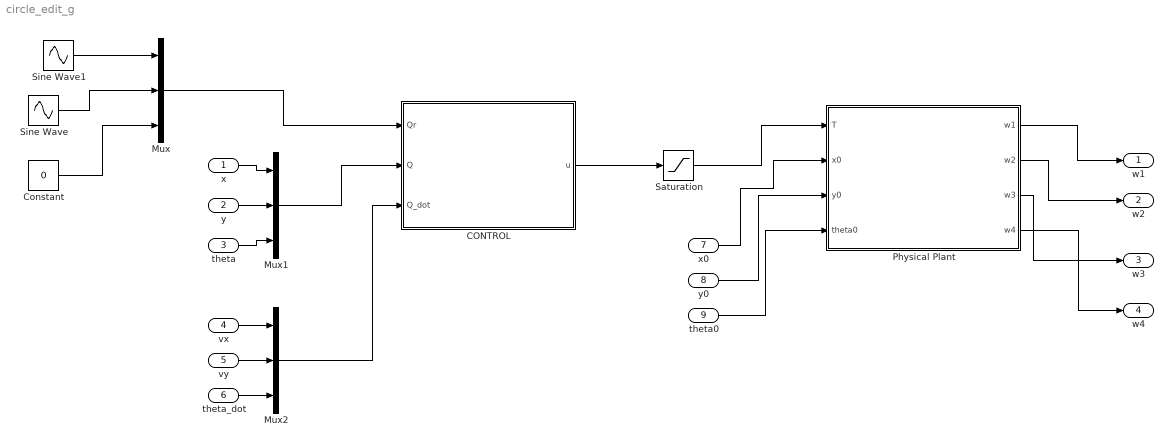
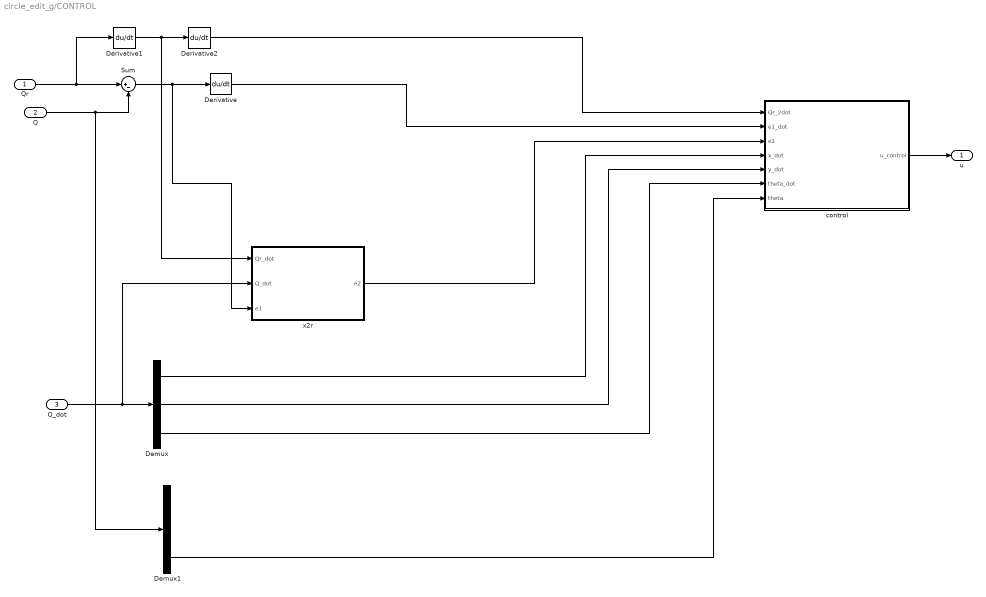
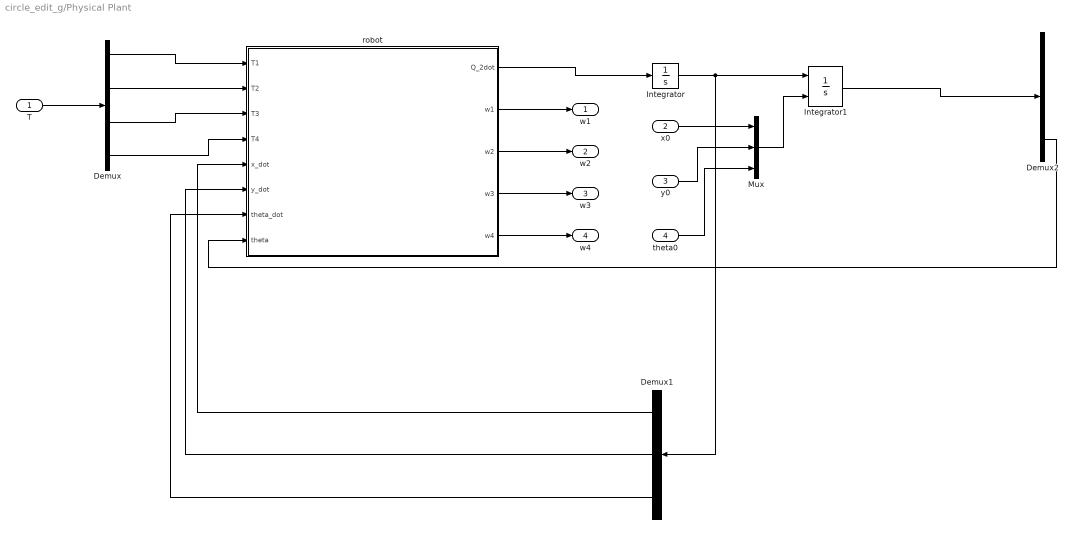
== matlab function circle_edit_g/Physical Plant/robot ==
function [Q_2dot,w1,w2,w3,w4]  = fcn(T1, T2, T3, T4,x_dot,y_dot,theta_dot,theta)

m=5;
I=5;
Ib=0.1;
l1= 0.3;
l2=0.3;
r=0.048;
g=9.8;
u=0.01;
N = m*g/4;
M=[(m+4*Ib/(r*r)) 0 0; 0 (m+4*Ib/(r*r)) 0; 0 0 (I+4*Ib*(l1+l2)*(l1+l2)/(r*r))];
C= [(m+4*Ib/(r*r))*y_dot*theta_dot;-(m+4*Ib/(r*r))*x_dot*theta_dot;0 ];
B=(1/r)*[(cos(theta)+sin(theta)) (cos(theta)-sin(theta)) (cos(theta)+sin(theta)) (cos(theta)-sin(theta));
         (-cos(theta)+sin(theta)) (cos(theta)+sin(theta)) (-cos(theta)+sin(theta)) (cos(theta)+sin(theta)); 
         (-(l1+l2)) (l1+l2) (l1+l2) (-(l1+l2)) ];
T=[T1;T2;T3;T4];
xm= cos(theta)*x_dot+sin(theta)*y_dot;
ym= -sin(theta)*x_dot+cos(theta)*y_dot;
w1 = (1/r)*(xm-ym-(l1+l2)*theta_dot);
w2 = (1/r)*(xm+ym+(l1+l2)*theta_dot);
w3 = (1/r)*(xm-ym+(l1+l2)*theta_dot);
w4 = (1/r)*(xm+ym-(l1+l2)*theta_dot);
w_max = 2.304;
if w1 > w_max
    w1 = w_max; %w = 20.83
elseif w1 < -w_max
    w1 = -w_max;
end
if w2 > w_max
    w2 = w_max;
elseif w2 < -w_max
    w2 = -w_max;
end
if w3 > w_max
    w3 = w_max;
elseif w3 < -w_max
    w3 = -w_max;
end
if w4 > w_max
    w4 = w_max;
elseif w4 < -w_max
    w4 = -w_max;
end
Xi=[u*r*N*sign(w1);u*r*N*sign(w2);u*r*N*sign(w3);u*N*r*sign(w4)];

Q_2dot=inv(M)*(B*T-C-B*Xi);

== matlab function circle_edit_g/CONTROL/control ==
function u_control = fcn(Qr_2dot,e1_dot,e2,x_dot,y_dot,theta_dot,theta)

m=5;
I=5;
Ib=0.1;
l1= 0.3;
l2=0.3;
r=0.048;
g=9.8;
u=0.01;
N = m*g/4;
M=[(m+4*Ib/(r*r)) 0 0; 0 (m+4*Ib/(r*r)) 0; 0 0 (I+4*Ib*(l1+l2)*(l1+l2)/(r*r))];
C= [(m+4*Ib/(r*r))*y_dot*theta_dot;-(m+4*Ib/(r*r))*x_dot*theta_dot;0 ];
B=(1/r)*[(cos(theta)+sin(theta)) (cos(theta)-sin(theta)) (cos(theta)+sin(theta)) (cos(theta)-sin(theta));
    (-cos(theta)+sin(theta)) (cos(theta)+sin(theta)) (-cos(theta)+sin(theta)) (cos(theta)+sin(theta)); 
    (-(l1+l2)) (l1+l2) (l1+l2) (-(l1+l2)) ];

xm= cos(theta)*x_dot+sin(theta)*y_dot;
ym= -sin(theta)*x_dot+cos(theta)*y_dot;
w1 = (1/r)*(xm-ym-(l1+l2)*theta_dot);
w2 = (1/r)*(xm+ym+(l1+l2)*theta_dot);
w3 = (1/r)*(xm-ym+(l1+l2)*theta_dot);
w4 = (1/r)*(xm+ym-(l1+l2)*theta_dot);
w_max = 2.304;
if w1 > w_max
    w1 = w_max; %w = 20.83
elseif w1 < -w_max
    w1 = -w_max;
end
if w2 > w_max
    w2 = w_max;
elseif w2 < -w_max
    w2 = -w_max;
end
if w3 > w_max
    w3 = w_max;
elseif w3 < -w_max
    w3 = -w_max;
end
if w4 > w_max
    w4 = w_max;
elseif w4 < -w_max
    w4 = -w_max;
end
Xi=[u*r*N*sign(w1);u*r*N*sign(w2);u*r*N*sign(w3);u*N*r*sign(w4)];

k1 = [4 0 0;
      0 4 0;
      0 0 4];
k2 = [4 0 0;
      0 4 0;
      0 0 4];
  
u_control = B'*inv(B*B')*M*((Qr_2dot+k1*e1_dot)+inv(M)*C+inv(M)*B*Xi+k2*e2);

== matlab function circle_edit_g/CONTROL/x2r ==
function e2  = fcn(Qr_dot,Q_dot,e1)

k1 = [4 0 0;
      0 4 0;
      0 0 4];
 
%x2r_dot = (Qr_2dot+k1*e1_dot);
x2r = Qr_dot + k1*e1;
e2 = x2r - Q_dot;

/*
 * File: circle_edit_g.c
 *
 * Code generated for Simulink model 'circle_edit_g'.
 *
 * Model version                  : 7.69
 * Simulink Coder version         : 9.4 (R2020b) 29-Jul-2020
 * C/C++ source code generated on : Mon May 27 18:05:09 2024
 *
 * Target selection: ert.tlc
 * Embedded hardware selection: ARM Compatible->ARM Cortex-M
 * Code generation objectives:
 *    1. Execution efficiency
 *    2. RAM efficiency
 * Validation result: Not run
 */

#include "circle_edit_g.h"
#define NumBitsPerChar                 8U

/* Private macros used by the generated code to access rtModel */
#ifndef rtmSetFirstInitCond
#define rtmSetFirstInitCond(rtm, val)  ((rtm)->Timing.firstInitCondFlag = (val))
#endif

#ifndef rtmIsFirstInitCond
#define rtmIsFirstInitCond(rtm)        ((rtm)->Timing.firstInitCondFlag)
#endif

#ifndef rtmIsMajorTimeStep
#define rtmIsMajorTimeStep(rtm)        (((rtm)->Timing.simTimeStep) == MAJOR_TIME_STEP)
#endif

#ifndef rtmIsMinorTimeStep
#define rtmIsMinorTimeStep(rtm)        (((rtm)->Timing.simTimeStep) == MINOR_TIME_STEP)
#endif

#ifndef rtmSetTPtr
#define rtmSetTPtr(rtm, val)           ((rtm)->Timing.t = (val))
#endif

/* Continuous states */
X rtX;

/* Block signals and states (default storage) */
DW rtDW;

/* External inputs (root inport signals with default storage) */
ExtU rtU;

/* External outputs (root outports fed by signals with default storage) */
ExtY rtY;

/* Real-time model */
static RT_MODEL rtM_;
RT_MODEL *const rtM = &rtM_;

/* private model entry point functions */
extern void circle_edit_g_derivatives(void);
static real_T rtGetInf(void);
static real32_T rtGetInfF(void);
static real_T rtGetMinusInf(void);
static real32_T rtGetMinusInfF(void);
static real_T rtGetNaN(void);
static real32_T rtGetNaNF(void);
extern real_T rtInf;
extern real_T rtMinusInf;
extern real_T rtNaN;
extern real32_T rtInfF;
extern real32_T rtMinusInfF;
extern real32_T rtNaNF;
static void rt_InitInfAndNaN(size_t realSize);
static boolean_T rtIsInf(real_T value);
static boolean_T rtIsInfF(real32_T value);
static boolean_T rtIsNaN(real_T value);
static boolean_T rtIsNaNF(real32_T value);
typedef struct {
  struct {
    uint32_T wordH;
    uint32_T wordL;
  } words;
} BigEndianIEEEDouble;

typedef struct {
  struct {
    uint32_T wordL;
    uint32_T wordH;
  } words;
} LittleEndianIEEEDouble;

typedef struct {
  union {
    real32_T wordLreal;
    uint32_T wordLuint;
  } wordL;
} IEEESingle;

real_T rtInf;
real_T rtMinusInf;
real_T rtNaN;
real32_T rtInfF;
real32_T rtMinusInfF;
real32_T rtNaNF;

/*
 * Initialize rtInf needed by the generated code.
 * Inf is initialized as non-signaling. Assumes IEEE.
 */
static real_T rtGetInf(void)
{
  size_t bitsPerReal = sizeof(real_T) * (NumBitsPerChar);
  real_T inf = 0.0;
  if (bitsPerReal == 32U) {
    inf = rtGetInfF();
  } else {
    union {
      LittleEndianIEEEDouble bitVal;
      real_T fltVal;
    } tmpVal;

    tmpVal.bitVal.words.wordH = 0x7FF00000U;
    tmpVal.bitVal.words.wordL = 0x00000000U;
    inf = tmpVal.fltVal;
  }

  return inf;
}

/*
 * Initialize rtInfF needed by the generated code.
 * Inf is initialized as non-signaling. Assumes IEEE.
 */
static real32_T rtGetInfF(void)
{
  IEEESingle infF;
  infF.wordL.wordLuint = 0x7F800000U;
  return infF.wordL.wordLreal;
}

/*
 * Initialize rtMinusInf needed by the generated code.
 * Inf is initialized as non-signaling. Assumes IEEE.
 */
static real_T rtGetMinusInf(void)
{
  size_t bitsPerReal = sizeof(real_T) * (NumBitsPerChar);
  real_T minf = 0.0;
  if (bitsPerReal == 32U) {
    minf = rtGetMinusInfF();
  } else {
    union {
      LittleEndianIEEEDouble bitVal;
      real_T fltVal;
    } tmpVal;

    tmpVal.bitVal.words.wordH = 0xFFF00000U;
    tmpVal.bitVal.words.wordL = 0x00000000U;
    minf = tmpVal.fltVal;
  }

  return minf;
}

/*
 * Initialize rtMinusInfF needed by the generated code.
 * Inf is initialized as non-signaling. Assumes IEEE.
 */
static real32_T rtGetMinusInfF(void)
{
  IEEESingle minfF;
  minfF.wordL.wordLuint = 0xFF800000U;
  return minfF.wordL.wordLreal;
}

/*
 * Initialize rtNaN needed by the generated code.
 * NaN is initialized as non-signaling. Assumes IEEE.
 */
static real_T rtGetNaN(void)
{
  size_t bitsPerReal = sizeof(real_T) * (NumBitsPerChar);
  real_T nan = 0.0;
  if (bitsPerReal == 32U) {
    nan = rtGetNaNF();
  } else {
    union {
      LittleEndianIEEEDouble bitVal;
      real_T fltVal;
    } tmpVal;

    tmpVal.bitVal.words.wordH = 0xFFF80000U;
    tmpVal.bitVal.words.wordL = 0x00000000U;
    nan = tmpVal.fltVal;
  }

  return nan;
}

/*
 * Initialize rtNaNF needed by the generated code.
 * NaN is initialized as non-signaling. Assumes IEEE.
 */
static real32_T rtGetNaNF(void)
{
  IEEESingle nanF = { { 0 } };

  nanF.wordL.wordLuint = 0xFFC00000U;
  return nanF.wordL.wordLreal;
}

/*
 * Initialize the rtInf, rtMinusInf, and rtNaN needed by the
 * generated code. NaN is initialized as non-signaling. Assumes IEEE.
 */
static void rt_InitInfAndNaN(size_t realSize)
{
  (void) (realSize);
  rtNaN = rtGetNaN();
  rtNaNF = rtGetNaNF();
  rtInf = rtGetInf();
  rtInfF = rtGetInfF();
  rtMinusInf = rtGetMinusInf();
  rtMinusInfF = rtGetMinusInfF();
}

/* Test if value is infinite */
static boolean_T rtIsInf(real_T value)
{
  return (boolean_T)((value==rtInf || value==rtMinusInf) ? 1U : 0U);
}

/* Test if single-precision value is infinite */
static boolean_T rtIsInfF(real32_T value)
{
  return (boolean_T)(((value)==rtInfF || (value)==rtMinusInfF) ? 1U : 0U);
}

/* Test if value is not a number */
static boolean_T rtIsNaN(real_T value)
{
  boolean_T result = (boolean_T) 0;
  size_t bitsPerReal = sizeof(real_T) * (NumBitsPerChar);
  if (bitsPerReal == 32U) {
    result = rtIsNaNF((real32_T)value);
  } else {
    union {
      LittleEndianIEEEDouble bitVal;
      real_T fltVal;
    } tmpVal;

    tmpVal.fltVal = value;
    result = (boolean_T)((tmpVal.bitVal.words.wordH & 0x7FF00000) == 0x7FF00000 &&
                         ( (tmpVal.bitVal.words.wordH & 0x000FFFFF) != 0 ||
                          (tmpVal.bitVal.words.wordL != 0) ));
  }

  return result;
}

/* Test if single-precision value is not a number */
static boolean_T rtIsNaNF(real32_T value)
{
  IEEESingle tmp;
  tmp.wordL.wordLreal = value;
  return (boolean_T)( (tmp.wordL.wordLuint & 0x7F800000) == 0x7F800000 &&
                     (tmp.wordL.wordLuint & 0x007FFFFF) != 0 );
}

/*
 * This function updates continuous states using the ODE5 fixed-step
 * solver algorithm
 */
static void rt_ertODEUpdateContinuousStates(RTWSolverInfo *si )
{
  /* Solver Matrices */
  static const real_T rt_ODE5_A[6] = {
    1.0/5.0, 3.0/10.0, 4.0/5.0, 8.0/9.0, 1.0, 1.0
  };

  static const real_T rt_ODE5_B[6][6] = {
    { 1.0/5.0, 0.0, 0.0, 0.0, 0.0, 0.0 },

    { 3.0/40.0, 9.0/40.0, 0.0, 0.0, 0.0, 0.0 },

    { 44.0/45.0, -56.0/15.0, 32.0/9.0, 0.0, 0.0, 0.0 },

    { 19372.0/6561.0, -25360.0/2187.0, 64448.0/6561.0, -212.0/729.0, 0.0, 0.0 },

    { 9017.0/3168.0, -355.0/33.0, 46732.0/5247.0, 49.0/176.0, -5103.0/18656.0,
      0.0 },

    { 35.0/384.0, 0.0, 500.0/1113.0, 125.0/192.0, -2187.0/6784.0, 11.0/84.0 }
  };

  time_T t = rtsiGetT(si);
  time_T tnew = rtsiGetSolverStopTime(si);
  time_T h = rtsiGetStepSize(si);
  real_T *x = rtsiGetContStates(si);
  ODE5_IntgData *id = (ODE5_IntgData *)rtsiGetSolverData(si);
  real_T *y = id->y;
  real_T *f0 = id->f[0];
  real_T *f1 = id->f[1];
  real_T *f2 = id->f[2];
  real_T *f3 = id->f[3];
  real_T *f4 = id->f[4];
  real_T *f5 = id->f[5];
  real_T hB[6];
  int_T i;
  int_T nXc = 6;
  rtsiSetSimTimeStep(si,MINOR_TIME_STEP);

  /* Save the state values at time t in y, we'll use x as ynew. */
  (void) memcpy(y, x,
                (uint_T)nXc*sizeof(real_T));

  /* Assumes that rtsiSetT and ModelOutputs are up-to-date */
  /* f0 = f(t,y) */
  rtsiSetdX(si, f0);
  circle_edit_g_derivatives();

  /* f(:,2) = feval(odefile, t + hA(1), y + f*hB(:,1), args(:)(*)); */
  hB[0] = h * rt_ODE5_B[0][0];
  for (i = 0; i < nXc; i++) {
    x[i] = y[i] + (f0[i]*hB[0]);
  }

  rtsiSetT(si, t + h*rt_ODE5_A[0]);
  rtsiSetdX(si, f1);
  circle_edit_g_step();
  circle_edit_g_derivatives();

  /* f(:,3) = feval(odefile, t + hA(2), y + f*hB(:,2), args(:)(*)); */
  for (i = 0; i <= 1; i++) {
    hB[i] = h * rt_ODE5_B[1][i];
  }

  for (i = 0; i < nXc; i++) {
    x[i] = y[i] + (f0[i]*hB[0] + f1[i]*hB[1]);
  }

  rtsiSetT(si, t + h*rt_ODE5_A[1]);
  rtsiSetdX(si, f2);
  circle_edit_g_step();
  circle_edit_g_derivatives();

  /* f(:,4) = feval(odefile, t + hA(3), y + f*hB(:,3), args(:)(*)); */
  for (i = 0; i <= 2; i++) {
    hB[i] = h * rt_ODE5_B[2][i];
  }

  for (i = 0; i < nXc; i++) {
    x[i] = y[i] + (f0[i]*hB[0] + f1[i]*hB[1] + f2[i]*hB[2]);
  }

  rtsiSetT(si, t + h*rt_ODE5_A[2]);
  rtsiSetdX(si, f3);
  circle_edit_g_step();
  circle_edit_g_derivatives();

  /* f(:,5) = feval(odefile, t + hA(4), y + f*hB(:,4), args(:)(*)); */
  for (i = 0; i <= 3; i++) {
    hB[i] = h * rt_ODE5_B[3][i];
  }

  for (i = 0; i < nXc; i++) {
    x[i] = y[i] + (f0[i]*hB[0] + f1[i]*hB[1] + f2[i]*hB[2] +
                   f3[i]*hB[3]);
  }

  rtsiSetT(si, t + h*rt_ODE5_A[3]);
  rtsiSetdX(si, f4);
  circle_edit_g_step();
  circle_edit_g_derivatives();

  /* f(:,6) = feval(odefile, t + hA(5), y + f*hB(:,5), args(:)(*)); */
  for (i = 0; i <= 4; i++) {
    hB[i] = h * rt_ODE5_B[4][i];
  }

  for (i = 0; i < nXc; i++) {
    x[i] = y[i] + (f0[i]*hB[0] + f1[i]*hB[1] + f2[i]*hB[2] +
                   f3[i]*hB[3] + f4[i]*hB[4]);
  }

  rtsiSetT(si, tnew);
  rtsiSetdX(si, f5);
  circle_edit_g_step();
  circle_edit_g_derivatives();

  /* tnew = t + hA(6);
     ynew = y + f*hB(:,6); */
  for (i = 0; i <= 5; i++) {
    hB[i] = h * rt_ODE5_B[5][i];
  }

  for (i = 0; i < nXc; i++) {
    x[i] = y[i] + (f0[i]*hB[0] + f1[i]*hB[1] + f2[i]*hB[2] +
                   f3[i]*hB[3] + f4[i]*hB[4] + f5[i]*hB[5]);
  }

  rtsiSetSimTimeStep(si,MAJOR_TIME_STEP);
}

/* Model step function */
void circle_edit_g_step(void)
{
  if (rtmIsMajorTimeStep(rtM)) {
    /* set solver stop time */
    rtsiSetSolverStopTime(&rtM->solverInfo,((rtM->Timing.clockTick0+1)*
      rtM->Timing.stepSize0));
  }                                    /* end MajorTimeStep */

  /* Update absolute time of base rate at minor time step */
  if (rtmIsMinorTimeStep(rtM)) {
    rtM->Timing.t[0] = rtsiGetT(&rtM->solverInfo);
  }

  {
    static const real_T b_a[9] = { 0.0055987558320373249, -0.0, 0.0, -0.0,
      0.0055987558320373249, -0.0, -0.0, -0.0, 0.014814814814814815 };

    static const real_T b_b[9] = { 178.61111111111111, 0.0, 0.0, 0.0,
      178.61111111111111, 0.0, 0.0, 0.0, 67.5 };

    static const int8_T a[9] = { 4, 0, 0, 0, 4, 0, 0, 0, 4 };

    real_T B_0[12];
    real_T y_tmp[12];
    real_T y_tmp_0[12];
    real_T x[9];
    real_T y[9];
    real_T rtb_Saturation[4];
    real_T B_1[3];
    real_T rtb_Derivative2[3];
    real_T rtb_Derivative2_0[3];
    real_T x_0[3];
    real_T (*lastU)[3];
    real_T B_2;
    real_T B_3;
    real_T absx21;
    real_T absx31;
    real_T rtb_Derivative_idx_0;
    real_T rtb_Derivative_idx_1;
    real_T rtb_Derivative_idx_2;
    real_T rtb_Saturation_idx_3;
    real_T tmp;
    real_T tmp_0;
    real_T w1;
    real_T w2;
    real_T w3;
    real_T xm;
    real_T ym;
    int32_T itmp;
    int32_T p1;
    int32_T p2;
    int32_T p3;

    /* Sin: '<Root>/Sine Wave1' incorporates:
     *  Sin: '<Root>/Sine Wave'
     */
    w2 = 0.20943951023931953 * rtM->Timing.t[0];

    /* Sin: '<Root>/Sine Wave1' */
    rtDW.SineWave1 = sin(w2 + 1.5707963267948966) * -0.25 + 1.5;

    /* Sin: '<Root>/Sine Wave' */
    rtDW.SineWave = sin(w2) * 0.25 + 0.6;

    /* Derivative: '<S1>/Derivative1' incorporates:
     *  Derivative: '<S1>/Derivative'
     *  Derivative: '<S1>/Derivative2'
     */
    w1 = rtM->Timing.t[0];
    if ((rtDW.TimeStampA >= w1) && (rtDW.TimeStampB >= w1)) {
      /* Derivative: '<S1>/Derivative1' */
      rtDW.Derivative1[0] = 0.0;
      rtDW.Derivative1[1] = 0.0;
      rtDW.Derivative1[2] = 0.0;
    } else {
      w2 = rtDW.TimeStampA;
      lastU = &rtDW.LastUAtTimeA;
      if (rtDW.TimeStampA < rtDW.TimeStampB) {
        if (rtDW.TimeStampB < w1) {
          w2 = rtDW.TimeStampB;
          lastU = &rtDW.LastUAtTimeB;
        }
      } else {
        if (rtDW.TimeStampA >= w1) {
          w2 = rtDW.TimeStampB;
          lastU = &rtDW.LastUAtTimeB;
        }
      }

      w2 = w1 - w2;

      /* Derivative: '<S1>/Derivative1' incorporates:
       *  Constant: '<Root>/Constant'
       */
      rtDW.Derivative1[0] = (rtDW.SineWave1 - (*lastU)[0]) / w2;
      rtDW.Derivative1[1] = (rtDW.SineWave - (*lastU)[1]) / w2;
      rtDW.Derivative1[2] = (0.0 - (*lastU)[2]) / w2;
    }

    /* End of Derivative: '<S1>/Derivative1' */

    /* Derivative: '<S1>/Derivative2' */
    if ((rtDW.TimeStampA_m >= w1) && (rtDW.TimeStampB_i >= w1)) {
      rtb_Derivative2[0] = 0.0;
      rtb_Derivative2[1] = 0.0;
      rtb_Derivative2[2] = 0.0;
    } else {
      w2 = rtDW.TimeStampA_m;
      lastU = &rtDW.LastUAtTimeA_d;
      if (rtDW.TimeStampA_m < rtDW.TimeStampB_i) {
        if (rtDW.TimeStampB_i < w1) {
          w2 = rtDW.TimeStampB_i;
          lastU = &rtDW.LastUAtTimeB_o;
        }
      } else {
        if (rtDW.TimeStampA_m >= w1) {
          w2 = rtDW.TimeStampB_i;
          lastU = &rtDW.LastUAtTimeB_o;
        }
      }

      w2 = w1 - w2;
      rtb_Derivative2[0] = (rtDW.Derivative1[0] - (*lastU)[0]) / w2;
      rtb_Derivative2[1] = (rtDW.Derivative1[1] - (*lastU)[1]) / w2;
      rtb_Derivative2[2] = (rtDW.Derivative1[2] - (*lastU)[2]) / w2;
    }

    /* Sum: '<S1>/Sum' incorporates:
     *  Constant: '<Root>/Constant'
     *  Inport: '<Root>/theta'
     *  Inport: '<Root>/x'
     *  Inport: '<Root>/y'
     */
    rtDW.Sum[0] = rtDW.SineWave1 - rtU.x;
    rtDW.Sum[1] = rtDW.SineWave - rtU.y;
    rtDW.Sum[2] = 0.0 - rtU.theta;

    /* Derivative: '<S1>/Derivative' */
    if ((rtDW.TimeStampA_o >= w1) && (rtDW.TimeStampB_g >= w1)) {
      rtb_Derivative_idx_0 = 0.0;
      rtb_Derivative_idx_1 = 0.0;
      rtb_Derivative_idx_2 = 0.0;
    } else {
      w2 = rtDW.TimeStampA_o;
      lastU = &rtDW.LastUAtTimeA_k;
      if (rtDW.TimeStampA_o < rtDW.TimeStampB_g) {
        if (rtDW.TimeStampB_g < w1) {
          w2 = rtDW.TimeStampB_g;
          lastU = &rtDW.LastUAtTimeB_on;
        }
      } else {
        if (rtDW.TimeStampA_o >= w1) {
          w2 = rtDW.TimeStampB_g;
          lastU = &rtDW.LastUAtTimeB_on;
        }
      }

      w2 = w1 - w2;
      rtb_Derivative_idx_0 = (rtDW.Sum[0] - (*lastU)[0]) / w2;
      rtb_Derivative_idx_1 = (rtDW.Sum[1] - (*lastU)[1]) / w2;
      rtb_Derivative_idx_2 = (rtDW.Sum[2] - (*lastU)[2]) / w2;
    }

    /* MATLAB Function: '<S1>/control' incorporates:
     *  Inport: '<Root>/theta'
     *  Inport: '<Root>/theta_dot'
     *  Inport: '<Root>/vx'
     *  Inport: '<Root>/vy'
     */
    w3 = cos(rtU.theta);
    ym = sin(rtU.theta);
    B_0[0] = (w3 + ym) * 20.833333333333332;
    B_0[3] = (w3 - ym) * 20.833333333333332;
    xm = (w3 + ym) * 20.833333333333332;
    B_0[6] = xm;
    B_0[9] = (w3 - ym) * 20.833333333333332;
    B_0[1] = (-w3 + ym) * 20.833333333333332;
    B_0[4] = xm;
    B_0[7] = (-cos(rtU.theta) + ym) * 20.833333333333332;
    B_0[10] = xm;
    B_0[2] = -12.499999999999998;
    B_0[5] = 12.499999999999998;
    B_0[8] = 12.499999999999998;
    B_0[11] = -12.499999999999998;
    xm = w3 * rtU.vx + ym * rtU.vy;
    ym = -ym * rtU.vx + w3 * rtU.vy;
    w3 = xm - ym;
    w1 = (w3 - 0.6 * rtU.theta_dot) * 20.833333333333332;
    ym += xm;
    w2 = (ym + 0.6 * rtU.theta_dot) * 20.833333333333332;
    w3 = (w3 + 0.6 * rtU.theta_dot) * 20.833333333333332;
    xm = (ym - 0.6 * rtU.theta_dot) * 20.833333333333332;
    if (w1 > 2.304) {
      w1 = 2.304;
    } else {
      if (w1 < -2.304) {
        w1 = -2.304;
      }
    }

    if (w2 > 2.304) {
      w2 = 2.304;
    } else {
      if (w2 < -2.304) {
        w2 = -2.304;
      }
    }

    if (w3 > 2.304) {
      w3 = 2.304;
    } else {
      if (w3 < -2.304) {
        w3 = -2.304;
      }
    }

    if (xm > 2.304) {
      xm = 2.304;
    } else {
      if (xm < -2.304) {
        xm = -2.304;
      }
    }

    for (p1 = 0; p1 < 3; p1++) {
      p3 = p1 << 2;
      y_tmp[p3] = B_0[p1];
      y_tmp[p3 + 1] = B_0[p1 + 3];
      y_tmp[p3 + 2] = B_0[p1 + 6];
      y_tmp[p3 + 3] = B_0[p1 + 9];
      for (p2 = 0; p2 < 3; p2++) {
        itmp = p2 + 3 * p1;
        y[itmp] = 0.0;
        y[itmp] += y_tmp[p3] * B_0[p2];
        y[itmp] += y_tmp[p3 + 1] * B_0[p2 + 3];
        y[itmp] += y_tmp[p3 + 2] * B_0[p2 + 6];
        y[itmp] += y_tmp[p3 + 3] * B_0[p2 + 9];
      }
    }

    memcpy(&x[0], &y[0], 9U * sizeof(real_T));
    p1 = 0;
    p2 = 3;
    p3 = 6;
    ym = fabs(y[0]);
    absx21 = fabs(y[1]);
    absx31 = fabs(y[2]);
    if ((absx21 > ym) && (absx21 > absx31)) {
      p1 = 3;
      p2 = 0;
      x[0] = y[1];
      x[1] = y[0];
      x[3] = y[4];
      x[4] = y[3];
      x[6] = y[7];
      x[7] = y[6];
    } else {
      if (absx31 > ym) {
        p1 = 6;
        p3 = 0;
        x[0] = y[2];
        x[2] = y[0];
        x[3] = y[5];
        x[5] = y[3];
        x[6] = y[8];
        x[8] = y[6];
      }
    }

    absx31 = x[1] / x[0];
    x[1] = absx31;
    ym = x[2] / x[0];
    x[2] = ym;
    x[4] -= absx31 * x[3];
    x[5] -= ym * x[3];
    x[7] -= absx31 * x[6];
    x[8] -= ym * x[6];
    if (fabs(x[5]) > fabs(x[4])) {
      itmp = p2;
      p2 = p3;
      p3 = itmp;
      x[1] = ym;
      x[2] = absx31;
      ym = x[4];
      x[4] = x[5];
      x[5] = ym;
      ym = x[7];
      x[7] = x[8];
      x[8] = ym;
    }

    absx31 = x[5] / x[4];
    x[8] -= absx31 * x[7];
    ym = (absx31 * x[1] - x[2]) / x[8];
    absx21 = -(x[7] * ym + x[1]) / x[4];
    y[p1] = ((1.0 - x[3] * absx21) - x[6] * ym) / x[0];
    y[p1 + 1] = absx21;
    y[p1 + 2] = ym;
    ym = -absx31 / x[8];
    absx21 = (1.0 - x[7] * ym) / x[4];
    y[p2] = -(x[3] * absx21 + x[6] * ym) / x[0];
    y[p2 + 1] = absx21;
    y[p2 + 2] = ym;
    ym = 1.0 / x[8];
    absx21 = -x[7] * ym / x[4];
    y[p3] = -(x[3] * absx21 + x[6] * ym) / x[0];
    y[p3 + 1] = absx21;
    y[p3 + 2] = ym;
    for (p1 = 0; p1 < 9; p1++) {
      x[p1] = a[p1];
    }

    for (p1 = 0; p1 < 3; p1++) {
      for (p2 = 0; p2 < 4; p2++) {
        p3 = p2 + (p1 << 2);
        y_tmp_0[p3] = 0.0;
        y_tmp_0[p3] += y[3 * p1] * y_tmp[p2];
        y_tmp_0[p3] += y[3 * p1 + 1] * y_tmp[p2 + 4];
        y_tmp_0[p3] += y[3 * p1 + 2] * y_tmp[p2 + 8];
      }
    }

    ym = 178.61111111111111 * rtU.vy * rtU.theta_dot;
    absx21 = -178.61111111111111 * rtU.vx * rtU.theta_dot;
    if (w1 < 0.0) {
      w1 = -1.0;
    } else if (w1 > 0.0) {
      w1 = 1.0;
    } else if (w1 == 0.0) {
      w1 = 0.0;
    } else {
      w1 = (rtNaN);
    }

    w1 *= 0.00588;
    if (w2 < 0.0) {
      w2 = -1.0;
    } else if (w2 > 0.0) {
      w2 = 1.0;
    } else if (w2 == 0.0) {
      w2 = 0.0;
    } else {
      w2 = (rtNaN);
    }

    w2 *= 0.00588;
    if (w3 < 0.0) {
      w3 = -1.0;
    } else if (w3 > 0.0) {
      w3 = 1.0;
    } else if (w3 == 0.0) {
      w3 = 0.0;
    } else {
      w3 = (rtNaN);
    }

    absx31 = 0.00588 * w3;
    if (xm < 0.0) {
      xm = -1.0;
    } else if (xm > 0.0) {
      xm = 1.0;
    } else if (xm == 0.0) {
      xm = 0.0;
    } else {
      xm = (rtNaN);
    }

    tmp_0 = 0.00588 * xm;

    /* SignalConversion generated from: '<S4>/ SFunction ' incorporates:
     *  Inport: '<Root>/theta_dot'
     *  Inport: '<Root>/vx'
     *  Inport: '<Root>/vy'
     *  MATLAB Function: '<S1>/x2r'
     */
    x_0[0] = rtU.vx;
    x_0[1] = rtU.vy;
    x_0[2] = rtU.theta_dot;
    for (p1 = 0; p1 < 3; p1++) {
      /* MATLAB Function: '<S1>/control' */
      xm = b_a[p1 + 3];
      w3 = b_a[p1 + 6];
      for (p2 = 0; p2 < 4; p2++) {
        p3 = p1 + 3 * p2;
        y_tmp[p3] = 0.0;
        y_tmp[p3] += B_0[3 * p2] * b_a[p1];
        y_tmp[p3] += B_0[3 * p2 + 1] * xm;
        y_tmp[p3] += B_0[3 * p2 + 2] * w3;
      }

      /* MATLAB Function: '<S1>/x2r' */
      B_1[p1] = ((((real_T)a[p1 + 3] * rtDW.Sum[1] + (real_T)a[p1] * rtDW.Sum[0])
                  + (real_T)a[p1 + 6] * rtDW.Sum[2]) + rtDW.Derivative1[p1]) -
        x_0[p1];

      /* MATLAB Function: '<S1>/control' */
      rtb_Derivative2_0[p1] = ((((x[p1 + 3] * rtb_Derivative_idx_1 + x[p1] *
        rtb_Derivative_idx_0) + x[p1 + 6] * rtb_Derivative_idx_2) +
        rtb_Derivative2[p1]) + (w3 * 0.0 + (xm * absx21 + b_a[p1] * ym))) +
        (((y_tmp[p1 + 3] * w2 + y_tmp[p1] * w1) + y_tmp[p1 + 6] * absx31) +
         y_tmp[p1 + 9] * tmp_0);
    }

    /* MATLAB Function: '<S1>/control' */
    for (p1 = 0; p1 < 3; p1++) {
      for (p2 = 0; p2 < 4; p2++) {
        p3 = p2 + (p1 << 2);
        y_tmp[p3] = 0.0;
        y_tmp[p3] += b_b[3 * p1] * y_tmp_0[p2];
        y_tmp[p3] += b_b[3 * p1 + 1] * y_tmp_0[p2 + 4];
        y_tmp[p3] += b_b[3 * p1 + 2] * y_tmp_0[p2 + 8];
      }

      x_0[p1] = x[p1 + 6] * B_1[2] + (x[p1 + 3] * B_1[1] + x[p1] * B_1[0]);
    }

    w2 = rtb_Derivative2_0[0] + x_0[0];
    w1 = rtb_Derivative2_0[1] + x_0[1];
    xm = rtb_Derivative2_0[2] + x_0[2];
    for (p1 = 0; p1 < 4; p1++) {
      w3 = y_tmp[p1 + 8] * xm + (y_tmp[p1 + 4] * w1 + y_tmp[p1] * w2);

      /* Saturate: '<Root>/Saturation' */
      if (w3 > 5.0) {
        rtb_Saturation[p1] = 5.0;
      } else if (w3 < -5.0) {
        rtb_Saturation[p1] = -5.0;
      } else {
        rtb_Saturation[p1] = w3;
      }

      /* End of Saturate: '<Root>/Saturation' */
    }

    /* Integrator: '<S2>/Integrator' */
    rtDW.Integrator[0] = rtX.Integrator_CSTATE[0];
    rtDW.Integrator[1] = rtX.Integrator_CSTATE[1];
    rtDW.Integrator[2] = rtX.Integrator_CSTATE[2];

    /* Integrator: '<S2>/Integrator1' incorporates:
     *  Inport: '<Root>/theta0'
     *  Inport: '<Root>/x0'
     *  Inport: '<Root>/y0'
     */
    if (rtDW.Integrator1_IWORK != 0) {
      rtX.Integrator1_CSTATE[0] = rtU.x0;
      rtX.Integrator1_CSTATE[1] = rtU.y0;
      rtX.Integrator1_CSTATE[2] = rtU.theta0;
    }

    /* MATLAB Function: '<S2>/robot' incorporates:
     *  Integrator: '<S2>/Integrator1'
     */
    w1 = cos(rtX.Integrator1_CSTATE[2]);
    w2 = sin(rtX.Integrator1_CSTATE[2]);
    B_0[0] = (w1 + w2) * 20.833333333333332;
    B_0[3] = (w1 - w2) * 20.833333333333332;
    xm = cos(rtX.Integrator1_CSTATE[2]);
    w3 = sin(rtX.Integrator1_CSTATE[2]);
    ym = (xm + w3) * 20.833333333333332;
    B_0[6] = ym;
    B_0[9] = (xm - w3) * 20.833333333333332;
    B_0[1] = (-w1 + w2) * 20.833333333333332;
    B_0[4] = ym;
    B_0[7] = (-xm + w3) * 20.833333333333332;
    B_0[10] = ym;
    B_0[2] = -12.499999999999998;
    B_0[5] = 12.499999999999998;
    B_0[8] = 12.499999999999998;
    B_0[11] = -12.499999999999998;
    xm = w1 * rtDW.Integrator[0] + w2 * rtDW.Integrator[1];
    ym = -w2 * rtDW.Integrator[0] + w1 * rtDW.Integrator[1];
    w3 = xm - ym;
    w1 = (w3 - 0.6 * rtDW.Integrator[2]) * 20.833333333333332;
    ym += xm;
    w2 = (ym + 0.6 * rtDW.Integrator[2]) * 20.833333333333332;
    w3 = (w3 + 0.6 * rtDW.Integrator[2]) * 20.833333333333332;
    xm = (ym - 0.6 * rtDW.Integrator[2]) * 20.833333333333332;
    if (w1 > 2.304) {
      w1 = 2.304;
    } else {
      if (w1 < -2.304) {
        w1 = -2.304;
      }
    }

    if (w2 > 2.304) {
      w2 = 2.304;
    } else {
      if (w2 < -2.304) {
        w2 = -2.304;
      }
    }

    if (w3 > 2.304) {
      w3 = 2.304;
    } else {
      if (w3 < -2.304) {
        w3 = -2.304;
      }
    }

    if (xm > 2.304) {
      xm = 2.304;
    } else {
      if (xm < -2.304) {
        xm = -2.304;
      }
    }

    rtb_Derivative_idx_0 = rtb_Saturation[0];
    rtb_Derivative_idx_1 = rtb_Saturation[1];
    rtb_Derivative_idx_2 = rtb_Saturation[2];
    rtb_Saturation_idx_3 = rtb_Saturation[3];
    x_0[0] = 178.61111111111111 * rtDW.Integrator[1] * rtDW.Integrator[2];
    x_0[1] = -178.61111111111111 * rtDW.Integrator[0] * rtDW.Integrator[2];
    x_0[2] = 0.0;
    if (w1 < 0.0) {
      ym = -1.0;
    } else if (w1 > 0.0) {
      ym = 1.0;
    } else if (w1 == 0.0) {
      ym = 0.0;
    } else {
      ym = (rtNaN);
    }

    ym *= 0.00588;
    if (w2 < 0.0) {
      absx21 = -1.0;
    } else if (w2 > 0.0) {
      absx21 = 1.0;
    } else if (w2 == 0.0) {
      absx21 = 0.0;
    } else {
      absx21 = (rtNaN);
    }

    absx21 *= 0.00588;
    if (w3 < 0.0) {
      absx31 = -1.0;
    } else if (w3 > 0.0) {
      absx31 = 1.0;
    } else if (w3 == 0.0) {
      absx31 = 0.0;
    } else {
      absx31 = (rtNaN);
    }

    absx31 *= 0.00588;
    if (xm < 0.0) {
      tmp_0 = -1.0;
    } else if (xm > 0.0) {
      tmp_0 = 1.0;
    } else if (xm == 0.0) {
      tmp_0 = 0.0;
    } else {
      tmp_0 = (rtNaN);
    }

    tmp_0 *= 0.00588;
    for (p1 = 0; p1 < 3; p1++) {
      B_2 = B_0[p1];
      tmp = B_2 * ym;
      B_3 = B_2 * rtb_Derivative_idx_0;
      B_2 = B_0[p1 + 3];
      tmp += B_2 * absx21;
      B_3 += B_2 * rtb_Derivative_idx_1;
      B_2 = B_0[p1 + 6];
      tmp += B_2 * absx31;
      B_3 += B_2 * rtb_Derivative_idx_2;
      B_2 = B_0[p1 + 9];
      tmp += B_2 * tmp_0;
      B_3 += B_2 * rtb_Saturation_idx_3;
      B_1[p1] = (B_3 - x_0[p1]) - tmp;
    }

    for (p1 = 0; p1 < 3; p1++) {
      rtDW.Q_2dot[p1] = 0.0;
      rtDW.Q_2dot[p1] += b_a[p1] * B_1[0];
      rtDW.Q_2dot[p1] += b_a[p1 + 3] * B_1[1];
      rtDW.Q_2dot[p1] += b_a[p1 + 6] * B_1[2];
    }

    /* Outport: '<Root>/w1' incorporates:
     *  MATLAB Function: '<S2>/robot'
     */
    rtY.w1 = w1;

    /* Outport: '<Root>/w2' incorporates:
     *  MATLAB Function: '<S2>/robot'
     */
    rtY.w2 = w2;

    /* Outport: '<Root>/w3' incorporates:
     *  MATLAB Function: '<S2>/robot'
     */
    rtY.w3 = w3;

    /* Outport: '<Root>/w4' incorporates:
     *  MATLAB Function: '<S2>/robot'
     */
    rtY.w4 = xm;
  }

  if (rtmIsMajorTimeStep(rtM)) {
    real_T (*lastU)[3];

    /* Update for Derivative: '<S1>/Derivative1' incorporates:
     *  Constant: '<Root>/Constant'
     */
    if (rtDW.TimeStampA == (rtInf)) {
      rtDW.TimeStampA = rtM->Timing.t[0];
      lastU = &rtDW.LastUAtTimeA;
    } else if (rtDW.TimeStampB == (rtInf)) {
      rtDW.TimeStampB = rtM->Timing.t[0];
      lastU = &rtDW.LastUAtTimeB;
    } else if (rtDW.TimeStampA < rtDW.TimeStampB) {
      rtDW.TimeStampA = rtM->Timing.t[0];
      lastU = &rtDW.LastUAtTimeA;
    } else {
      rtDW.TimeStampB = rtM->Timing.t[0];
      lastU = &rtDW.LastUAtTimeB;
    }

    (*lastU)[0] = rtDW.SineWave1;
    (*lastU)[1] = rtDW.SineWave;
    (*lastU)[2] = 0.0;

    /* End of Update for Derivative: '<S1>/Derivative1' */

    /* Update for Derivative: '<S1>/Derivative2' */
    if (rtDW.TimeStampA_m == (rtInf)) {
      rtDW.TimeStampA_m = rtM->Timing.t[0];
      lastU = &rtDW.LastUAtTimeA_d;
    } else if (rtDW.TimeStampB_i == (rtInf)) {
      rtDW.TimeStampB_i = rtM->Timing.t[0];
      lastU = &rtDW.LastUAtTimeB_o;
    } else if (rtDW.TimeStampA_m < rtDW.TimeStampB_i) {
      rtDW.TimeStampA_m = rtM->Timing.t[0];
      lastU = &rtDW.LastUAtTimeA_d;
    } else {
      rtDW.TimeStampB_i = rtM->Timing.t[0];
      lastU = &rtDW.LastUAtTimeB_o;
    }

    (*lastU)[0] = rtDW.Derivative1[0];
    (*lastU)[1] = rtDW.Derivative1[1];
    (*lastU)[2] = rtDW.Derivative1[2];

    /* End of Update for Derivative: '<S1>/Derivative2' */

    /* Update for Derivative: '<S1>/Derivative' */
    if (rtDW.TimeStampA_o == (rtInf)) {
      rtDW.TimeStampA_o = rtM->Timing.t[0];
      lastU = &rtDW.LastUAtTimeA_k;
    } else if (rtDW.TimeStampB_g == (rtInf)) {
      rtDW.TimeStampB_g = rtM->Timing.t[0];
      lastU = &rtDW.LastUAtTimeB_on;
    } else if (rtDW.TimeStampA_o < rtDW.TimeStampB_g) {
      rtDW.TimeStampA_o = rtM->Timing.t[0];
      lastU = &rtDW.LastUAtTimeA_k;
    } else {
      rtDW.TimeStampB_g = rtM->Timing.t[0];
      lastU = &rtDW.LastUAtTimeB_on;
    }

    (*lastU)[0] = rtDW.Sum[0];
    (*lastU)[1] = rtDW.Sum[1];
    (*lastU)[2] = rtDW.Sum[2];

    /* End of Update for Derivative: '<S1>/Derivative' */

    /* Update for Integrator: '<S2>/Integrator1' */
    rtDW.Integrator1_IWORK = 0;
  }                                    /* end MajorTimeStep */

  if (rtmIsMajorTimeStep(rtM)) {
    rt_ertODEUpdateContinuousStates(&rtM->solverInfo);

    /* Update absolute time for base rate */
    /* The "clockTick0" counts the number of times the code of this task has
     * been executed. The absolute time is the multiplication of "clockTick0"
     * and "Timing.stepSize0". Size of "clockTick0" ensures timer will not
     * overflow during the application lifespan selected.
     */
    ++rtM->Timing.clockTick0;
    rtM->Timing.t[0] = rtsiGetSolverStopTime(&rtM->solverInfo);

    {
      /* Update absolute timer for sample time: [0.1s, 0.0s] */
      /* The "clockTick1" counts the number of times the code of this task has
       * been executed. The resolution of this integer timer is 0.1, which is the step size
       * of the task. Size of "clockTick1" ensures timer will not overflow during the
       * application lifespan selected.
       */
      rtM->Timing.clockTick1++;
    }
  }                                    /* end MajorTimeStep */
}
